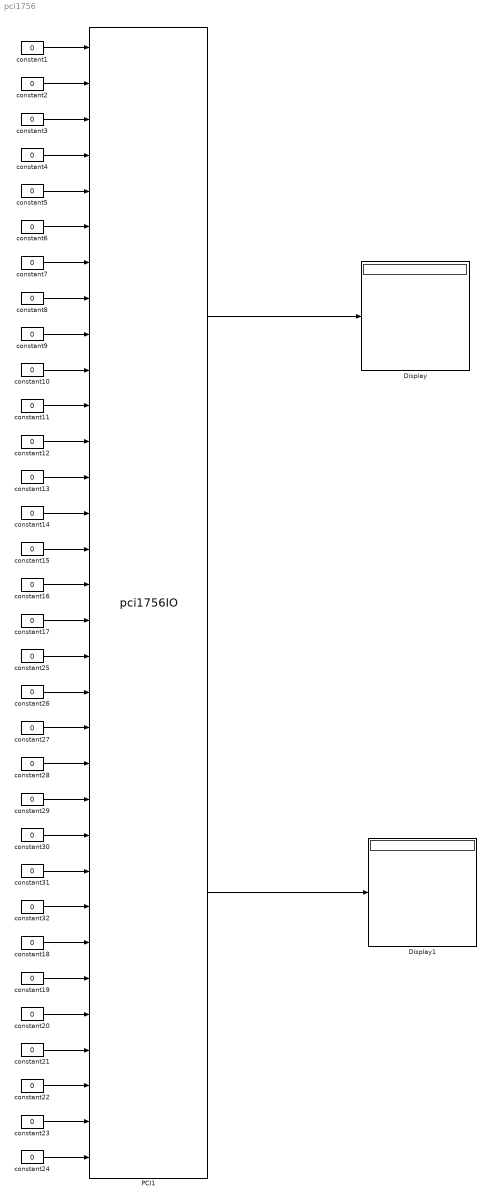
/*
 * pci1756.c
 *
 * Code generation for model "pci1756".
 *
 * Model version              : 1.11
 * Simulink Coder version : 8.11 (R2016b) 25-Aug-2016
 * C source code generated on : Tue Aug 10 08:45:59 2021
 *
 * Target selection: slrt.tlc
 * Note: GRT includes extra infrastructure and instrumentation for prototyping
 * Embedded hardware selection: Generic->32-bit x86 compatible
 * Code generation objectives: Unspecified
 * Validation result: Not run
 */

#include "rt_logging_mmi.h"
#include "pci1756_capi.h"
#include "pci1756.h"
#include "pci1756_private.h"

/* Block signals (auto storage) */
B_pci1756_T pci1756_B;

/* Block states (auto storage) */
DW_pci1756_T pci1756_DW;

/* Real-time model */
RT_MODEL_pci1756_T pci1756_M_;
RT_MODEL_pci1756_T *const pci1756_M = &pci1756_M_;

/* Model output function */
static void pci1756_output(void)
{
  /* Constant: '<Root>/constant1' */
  pci1756_B.constant1 = pci1756_P.constant1_Value;

  /* Constant: '<Root>/constant2' */
  pci1756_B.constant2 = pci1756_P.constant2_Value;

  /* Constant: '<Root>/constant3' */
  pci1756_B.constant3 = pci1756_P.constant3_Value;

  /* Constant: '<Root>/constant4' */
  pci1756_B.constant4 = pci1756_P.constant4_Value;

  /* Constant: '<Root>/constant5' */
  pci1756_B.constant5 = pci1756_P.constant5_Value;

  /* Constant: '<Root>/constant6' */
  pci1756_B.constant6 = pci1756_P.constant6_Value;

  /* Constant: '<Root>/constant7' */
  pci1756_B.constant7 = pci1756_P.constant7_Value;

  /* Constant: '<Root>/constant8' */
  pci1756_B.constant8 = pci1756_P.constant8_Value;

  /* Constant: '<Root>/constant9' */
  pci1756_B.constant9 = pci1756_P.constant9_Value;

  /* Constant: '<Root>/constant10' */
  pci1756_B.constant10 = pci1756_P.constant10_Value;

  /* Constant: '<Root>/constant11' */
  pci1756_B.constant11 = pci1756_P.constant11_Value;

  /* Constant: '<Root>/constant12' */
  pci1756_B.constant12 = pci1756_P.constant12_Value;

  /* Constant: '<Root>/constant13' */
  pci1756_B.constant13 = pci1756_P.constant13_Value;

  /* Constant: '<Root>/constant14' */
  pci1756_B.constant14 = pci1756_P.constant14_Value;

  /* Constant: '<Root>/constant15' */
  pci1756_B.constant15 = pci1756_P.constant15_Value;

  /* Constant: '<Root>/constant16' */
  pci1756_B.constant16 = pci1756_P.constant16_Value;

  /* Constant: '<Root>/constant17' */
  pci1756_B.constant17 = pci1756_P.constant17_Value;

  /* Constant: '<Root>/constant25' */
  pci1756_B.constant25 = pci1756_P.constant25_Value;

  /* Constant: '<Root>/constant26' */
  pci1756_B.constant26 = pci1756_P.constant26_Value;

  /* Constant: '<Root>/constant27' */
  pci1756_B.constant27 = pci1756_P.constant27_Value;

  /* Constant: '<Root>/constant28' */
  pci1756_B.constant28 = pci1756_P.constant28_Value;

  /* Constant: '<Root>/constant29' */
  pci1756_B.constant29 = pci1756_P.constant29_Value;

  /* Constant: '<Root>/constant30' */
  pci1756_B.constant30 = pci1756_P.constant30_Value;

  /* Constant: '<Root>/constant31' */
  pci1756_B.constant31 = pci1756_P.constant31_Value;

  /* Constant: '<Root>/constant32' */
  pci1756_B.constant32 = pci1756_P.constant32_Value;

  /* Constant: '<Root>/constant18' */
  pci1756_B.constant18 = pci1756_P.constant18_Value;

  /* Constant: '<Root>/constant19' */
  pci1756_B.constant19 = pci1756_P.constant19_Value;

  /* Constant: '<Root>/constant20' */
  pci1756_B.constant20 = pci1756_P.constant20_Value;

  /* Constant: '<Root>/constant21' */
  pci1756_B.constant21 = pci1756_P.constant21_Value;

  /* Constant: '<Root>/constant22' */
  pci1756_B.constant22 = pci1756_P.constant22_Value;

  /* Constant: '<Root>/constant23' */
  pci1756_B.constant23 = pci1756_P.constant23_Value;

  /* Constant: '<Root>/constant24' */
  pci1756_B.constant24 = pci1756_P.constant24_Value;

  /* Level2 S-Function Block: '<Root>/PCI1' (pci1756IO) */
  {
    SimStruct *rts = pci1756_M->childSfunctions[0];
    sfcnOutputs(rts, 0);
  }
}

/* Model update function */
static void pci1756_update(void)
{
  /* Update absolute time for base rate */
  /* The "clockTick0" counts the number of times the code of this task has
   * been executed. The absolute time is the multiplication of "clockTick0"
   * and "Timing.stepSize0". Size of "clockTick0" ensures timer will not
   * overflow during the application lifespan selected.
   * Timer of this task consists of two 32 bit unsigned integers.
   * The two integers represent the low bits Timing.clockTick0 and the high bits
   * Timing.clockTickH0. When the low bit overflows to 0, the high bits increment.
   */
  if (!(++pci1756_M->Timing.clockTick0)) {
    ++pci1756_M->Timing.clockTickH0;
  }

  pci1756_M->Timing.t[0] = pci1756_M->Timing.clockTick0 *
    pci1756_M->Timing.stepSize0 + pci1756_M->Timing.clockTickH0 *
    pci1756_M->Timing.stepSize0 * 4294967296.0;
}
